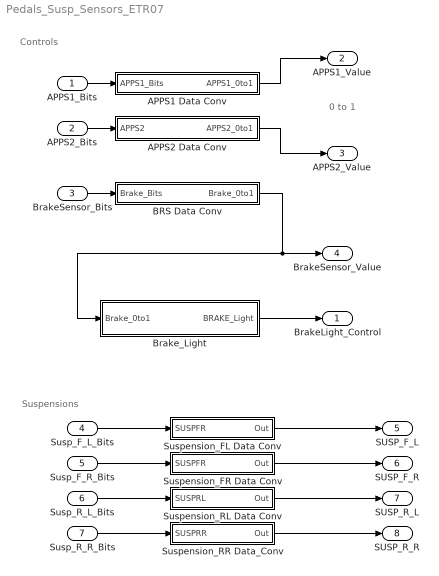
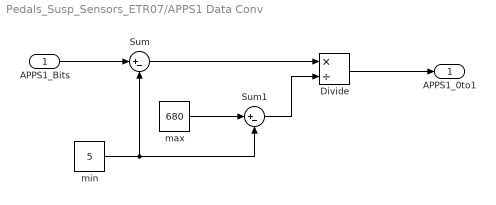
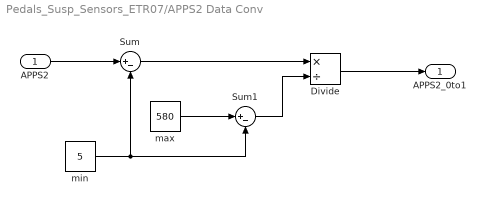
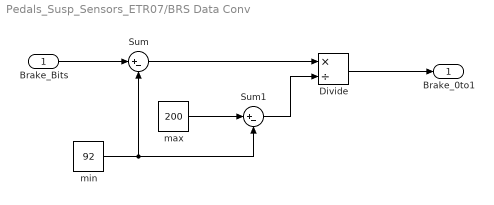
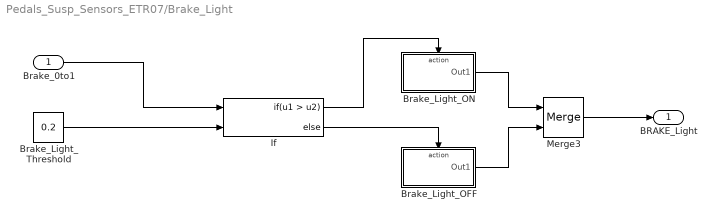
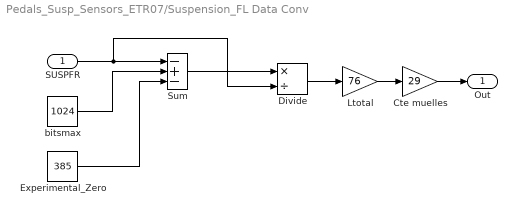
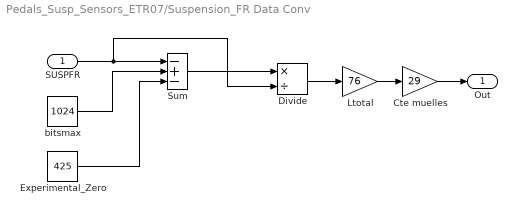
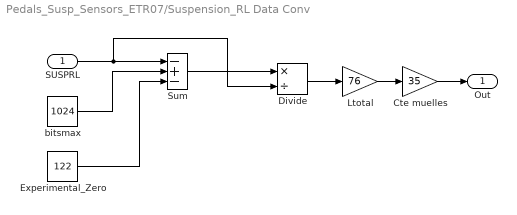
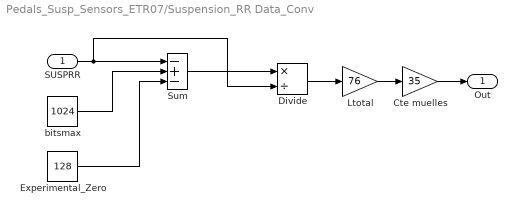
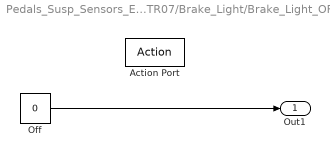
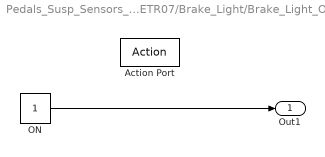
/*
 * Pedals_Susp_Sensors_ETR07.c
 *
 * Academic License - for use in teaching, academic research, and meeting
 * course requirements at degree granting institutions only.  Not for
 * government, commercial, or other organizational use.
 *
 * Code generation for model "Pedals_Susp_Sensors_ETR07".
 *
 * Model version              : 1.17
 * Simulink Coder version : 8.13 (R2017b) 24-Jul-2017
 * C source code generated on : Sat Jun 18 14:26:23 2022
 *
 * Target selection: irt.tlc
 * Note: GRT includes extra infrastructure and instrumentation for prototyping
 * Embedded hardware selection: Intel->x86-64 (Windows64)
 * Code generation objectives: Unspecified
 * Validation result: Not run
 */

#include "Pedals_Susp_Sensors_ETR07.h"
#include "Pedals_Susp_Sensors_ETR07_private.h"

/* External inputs (root inport signals with auto storage) */
ExtU_Pedals_Susp_Sensors_ETR0_T Pedals_Susp_Sensors_ETR07_U;

/* External outputs (root outports fed by signals with auto storage) */
ExtY_Pedals_Susp_Sensors_ETR0_T Pedals_Susp_Sensors_ETR07_Y;

/* Real-time model */
RT_MODEL_Pedals_Susp_Sensors__T Pedals_Susp_Sensors_ETR07_M_;
RT_MODEL_Pedals_Susp_Sensors__T *const Pedals_Susp_Sensors_ETR07_M =
  &Pedals_Susp_Sensors_ETR07_M_;

/* Model output function */
static void Pedals_Susp_Sensors_ETR07_output(void)
{
  real_T rtb_Divide;

  /* Product: '<S3>/Divide' incorporates:
   *  Constant: '<S3>/max'
   *  Constant: '<S3>/min'
   *  Inport: '<Root>/BrakeSensor_Bits'
   *  Sum: '<S3>/Sum'
   *  Sum: '<S3>/Sum1'
   */
  rtb_Divide = (Pedals_Susp_Sensors_ETR07_U.BrakeSensor_Bits -
                Pedals_Susp_Sensors_ETR07_P.min_Value) /
    (Pedals_Susp_Sensors_ETR07_P.max_Value -
     Pedals_Susp_Sensors_ETR07_P.min_Value);

  /* Outputs for Atomic SubSystem: '<Root>/Brake_Light' */
  /* If: '<S4>/If' incorporates:
   *  Constant: '<S4>/Brake_Light_Threshold'
   */
  if (rtb_Divide > Pedals_Susp_Sensors_ETR07_P.Brake_Light_Threshold_Value) {
    /* Outputs for IfAction SubSystem: '<S4>/Brake_Light_ON' incorporates:
     *  ActionPort: '<S10>/Action Port'
     */
    /* Outport: '<Root>/BrakeLight_Control' incorporates:
     *  Constant: '<S10>/ON'
     */
    Pedals_Susp_Sensors_ETR07_Y.BrakeLight_Control =
      Pedals_Susp_Sensors_ETR07_P.ON_Value;

    /* End of Outputs for SubSystem: '<S4>/Brake_Light_ON' */
  } else {
    /* Outputs for IfAction SubSystem: '<S4>/Brake_Light_OFF' incorporates:
     *  ActionPort: '<S9>/Action Port'
     */
    /* Outport: '<Root>/BrakeLight_Control' incorporates:
     *  Constant: '<S9>/Off'
     */
    Pedals_Susp_Sensors_ETR07_Y.BrakeLight_Control =
      Pedals_Susp_Sensors_ETR07_P.Off_Value;

    /* End of Outputs for SubSystem: '<S4>/Brake_Light_OFF' */
  }

  /* End of If: '<S4>/If' */
  /* End of Outputs for SubSystem: '<Root>/Brake_Light' */

  /* Outport: '<Root>/BrakeSensor_Value' */
  Pedals_Susp_Sensors_ETR07_Y.BrakeSensor_Value = rtb_Divide;

  /* Outport: '<Root>/APPS1_Value' incorporates:
   *  Constant: '<S1>/max'
   *  Constant: '<S1>/min'
   *  Inport: '<Root>/APPS1_Bits'
   *  Product: '<S1>/Divide'
   *  Sum: '<S1>/Sum'
   *  Sum: '<S1>/Sum1'
   */
  Pedals_Susp_Sensors_ETR07_Y.APPS1_Value =
    (Pedals_Susp_Sensors_ETR07_U.APPS1_Bits -
     Pedals_Susp_Sensors_ETR07_P.min_Value_a) /
    (Pedals_Susp_Sensors_ETR07_P.max_Value_f -
     Pedals_Susp_Sensors_ETR07_P.min_Value_a);

  /* Outport: '<Root>/APPS2_Value' incorporates:
   *  Constant: '<S2>/max'
   *  Constant: '<S2>/min'
   *  Inport: '<Root>/APPS2_Bits'
   *  Product: '<S2>/Divide'
   *  Sum: '<S2>/Sum'
   *  Sum: '<S2>/Sum1'
   */
  Pedals_Susp_Sensors_ETR07_Y.APPS2_Value =
    (Pedals_Susp_Sensors_ETR07_U.APPS2_Bits -
     Pedals_Susp_Sensors_ETR07_P.min_Value_g) /
    (Pedals_Susp_Sensors_ETR07_P.max_Value_a -
     Pedals_Susp_Sensors_ETR07_P.min_Value_g);

  /* Outport: '<Root>/SUSP_F_L' incorporates:
   *  Constant: '<S5>/Experimental_Zero'
   *  Constant: '<S5>/bitsmax '
   *  Gain: '<S5>/Cte muelles'
   *  Gain: '<S5>/Ltotal'
   *  Inport: '<Root>/Susp_F_L_Bits'
   *  Product: '<S5>/Divide'
   *  Sum: '<S5>/Sum'
   */
  Pedals_Susp_Sensors_ETR07_Y.SUSP_F_L =
    ((Pedals_Susp_Sensors_ETR07_P.bitsmax_Value -
      Pedals_Susp_Sensors_ETR07_U.Susp_F_L_Bits) -
     Pedals_Susp_Sensors_ETR07_P.Experimental_Zero_Value) /
    Pedals_Susp_Sensors_ETR07_U.Susp_F_L_Bits *
    Pedals_Susp_Sensors_ETR07_P.Ltotal_Gain *
    Pedals_Susp_Sensors_ETR07_P.Ctemuelles_Gain;

  /* Outport: '<Root>/SUSP_F_R' incorporates:
   *  Constant: '<S6>/Experimental_Zero'
   *  Constant: '<S6>/bitsmax '
   *  Gain: '<S6>/Cte muelles'
   *  Gain: '<S6>/Ltotal'
   *  Inport: '<Root>/Susp_F_R_Bits'
   *  Product: '<S6>/Divide'
   *  Sum: '<S6>/Sum'
   */
  Pedals_Susp_Sensors_ETR07_Y.SUSP_F_R =
    ((Pedals_Susp_Sensors_ETR07_P.bitsmax_Value_e -
      Pedals_Susp_Sensors_ETR07_U.Susp_F_R_Bits) -
     Pedals_Susp_Sensors_ETR07_P.Experimental_Zero_Value_e) /
    Pedals_Susp_Sensors_ETR07_U.Susp_F_R_Bits *
    Pedals_Susp_Sensors_ETR07_P.Ltotal_Gain_c *
    Pedals_Susp_Sensors_ETR07_P.Ctemuelles_Gain_e;

  /* Outport: '<Root>/SUSP_R_L' incorporates:
   *  Constant: '<S7>/Experimental_Zero'
   *  Constant: '<S7>/bitsmax '
   *  Gain: '<S7>/Cte muelles'
   *  Gain: '<S7>/Ltotal'
   *  Inport: '<Root>/Susp_R_L_Bits'
   *  Product: '<S7>/Divide'
   *  Sum: '<S7>/Sum'
   */
  Pedals_Susp_Sensors_ETR07_Y.SUSP_R_L =
    ((Pedals_Susp_Sensors_ETR07_P.bitsmax_Value_g -
      Pedals_Susp_Sensors_ETR07_U.Susp_R_L_Bits) -
     Pedals_Susp_Sensors_ETR07_P.Experimental_Zero_Value_f) /
    Pedals_Susp_Sensors_ETR07_U.Susp_R_L_Bits *
    Pedals_Susp_Sensors_ETR07_P.Ltotal_Gain_d *
    Pedals_Susp_Sensors_ETR07_P.Ctemuelles_Gain_j;

  /* Outport: '<Root>/SUSP_R_R' incorporates:
   *  Constant: '<S8>/Experimental_Zero'
   *  Constant: '<S8>/bitsmax '
   *  Gain: '<S8>/Cte muelles'
   *  Gain: '<S8>/Ltotal'
   *  Inport: '<Root>/Susp_R_R_Bits'
   *  Product: '<S8>/Divide'
   *  Sum: '<S8>/Sum'
   */
  Pedals_Susp_Sensors_ETR07_Y.SUSP_R_R =
    ((Pedals_Susp_Sensors_ETR07_P.bitsmax_Value_n -
      Pedals_Susp_Sensors_ETR07_U.Susp_R_R_Bits) -
     Pedals_Susp_Sensors_ETR07_P.Experimental_Zero_Value_a) /
    Pedals_Susp_Sensors_ETR07_U.Susp_R_R_Bits *
    Pedals_Susp_Sensors_ETR07_P.Ltotal_Gain_e *
    Pedals_Susp_Sensors_ETR07_P.Ctemuelles_Gain_f;
}

/* Model update function */
static void Pedals_Susp_Sensors_ETR07_update(void)
{
  /* Update absolute time for base rate */
  /* The "clockTick0" counts the number of times the code of this task has
   * been executed. The absolute time is the multiplication of "clockTick0"
   * and "Timing.stepSize0". Size of "clockTick0" ensures timer will not
   * overflow during the application lifespan selected.
   * Timer of this task consists of two 32 bit unsigned integers.
   * The two integers represent the low bits Timing.clockTick0 and the high bits
   * Timing.clockTickH0. When the low bit overflows to 0, the high bits increment.
   */
  if (!(++Pedals_Susp_Sensors_ETR07_M->Timing.clockTick0)) {
    ++Pedals_Susp_Sensors_ETR07_M->Timing.clockTickH0;
  }

  Pedals_Susp_Sensors_ETR07_M->Timing.t[0] =
    Pedals_Susp_Sensors_ETR07_M->Timing.clockTick0 *
    Pedals_Susp_Sensors_ETR07_M->Timing.stepSize0 +
    Pedals_Susp_Sensors_ETR07_M->Timing.clockTickH0 *
    Pedals_Susp_Sensors_ETR07_M->Timing.stepSize0 * 4294967296.0;
}
